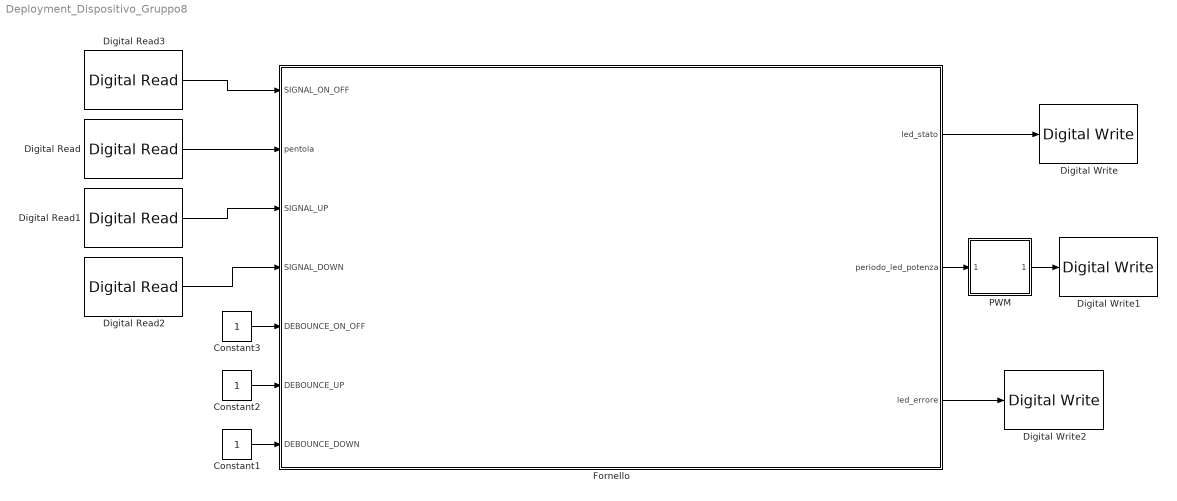
== stateflow chart Deployment_Dispositivo_Gruppo8/Fornello ==
  state DEVICE
    state FORNELLO [parallel]
      state ON
        en: led_stato = true
        state SELECTOR [parallel]
          state SELECTED_0W
            en: selected_power=0;
          state SELECTED_300W
            en: selected_power=300;
          state SELECTED_500W
            en: selected_power=500
          state SELECTED_1000W
            en: selected_power=1000
          state SELECTED_1500W
            en: selected_power=1500
          (default) -> SELECTED_0W
          (junction 32) -> SELECTED_0W
          SELECTED_500W -> (junction 32) [order 1] : disattiva
          SELECTED_1000W -> (junction 32) [order 2] : disattiva
          SELECTED_1500W -> (junction 32) [order 2] : disattiva
          SELECTED_300W -> (junction 32) [order 1] : disattiva
          SELECTED_0W -> SELECTED_300W : LONG_PRESS_UP[pentola == false]
          SELECTED_300W -> SELECTED_0W [order 3] : LONG_PRESS_DOWN[pentola==false]
          SELECTED_500W -> SELECTED_300W [order 2] : LONG_PRESS_DOWN[pentola==false]
          SELECTED_300W -> SELECTED_500W [order 2] : LONG_PRESS_UP[pentola == false]
          SELECTED_1000W -> SELECTED_500W [order 3] : LONG_PRESS_DOWN[pentola==false]
          SELECTED_500W -> SELECTED_1000W [order 3] : LONG_PRESS_UP[pentola == false]
          SELECTED_1500W -> SELECTED_1000W [order 1] : LONG_PRESS_DOWN[pentola == false]
          SELECTED_1000W -> SELECTED_1500W [order 1] : LONG_PRESS_UP[pentola==false]
        state WATCHDOG [parallel]
          state IDLE
          state ERROR
            en: led_errore = true
            on after(10,sec): send(disattiva,SELECTOR); erogaPotenza(0)
            ex: led_errore = false
          (default) -> DEVICE.FORNELLO.ON.WATCHDOG.IDLE
          DEVICE.FORNELLO.ON.WATCHDOG.IDLE -> ERROR : [pentola == true && attivo==true]
          ERROR -> DEVICE.FORNELLO.ON.WATCHDOG.IDLE : [pentola == false || attivo == false]
        state SUPPLIER [parallel]
          state NO_CHANGE_REQUESTED
          state Applying_0_power
            en: erogaPotenza(selected_power)
          state Applying_power
            en: erogaPotenza(selected_power)
          state PENDING_CHANGE
            en: t_debug = 0
          NO_CHANGE_REQUESTED -> PENDING_CHANGE : change_power
          Applying_power -> NO_CHANGE_REQUESTED [order 2]
          Applying_0_power -> NO_CHANGE_REQUESTED
          Applying_power -> Applying_0_power [order 1] : [attivo == false]
          PENDING_CHANGE -> Applying_power : [pentola==false]
        state DELAYED_TRIGGER [parallel]
          state IDLE
          state DELAYING
          (default) -> DEVICE.FORNELLO.ON.DELAYED_TRIGGER.IDLE
          DEVICE.FORNELLO.ON.DELAYED_TRIGGER.IDLE -> DELAYING : change(selected_power)
          DELAYING -> DEVICE.FORNELLO.ON.DELAYED_TRIGGER.IDLE [order 2] : after(5,sec)/{send(change_power, SUPPLIER)}
          DELAYING -> DELAYING [order 1] : change(selected_power)
        (default) -> NO_CHANGE_REQUESTED
      state OFF
        en: led_stato = false; erogaPotenza(0)
      state erogaPotenza(power) [function]
        (default) -> (junction 65) : {power = double(power)}
        (junction 65) -> (junction 68) [order 1] : [power == 0]
        (junction 68) -> (junction 118) : {periodo_led_potenza=0;attivo=false}
        (junction 118) -> (junction 89)
        (junction 65) -> (junction 77) [order 2]
        (junction 77) -> (junction 83) [order 1] : [power == 300]
        (junction 83) -> (junction 120) : {periodo_led_potenza=2;attivo=true}
        (junction 120) -> (junction 89)
        (junction 77) -> (junction 79) [order 2]
        (junction 122) -> (junction 89)
        (junction 119) -> (junction 89)
        (junction 121) -> (junction 89)
        (junction 79) -> (junction 84) [order 1] : [power == 500]
        (junction 84) -> (junction 122) : {periodo_led_potenza=1;attivo=true}
        (junction 79) -> (junction 81) [order 2]
        (junction 81) -> (junction 92) [order 1] : [power == 1000]
        (junction 92) -> (junction 119) : {periodo_led_potenza=0.5;attivo=true}
        (junction 81) -> (junction 95) [order 2]
        (junction 95) -> (junction 99) : [power == 1500]
        (junction 99) -> (junction 121) : {periodo_led_potenza=0.25;attivo=true}
      (default) -> OFF
      OFF -> ON : SHORT_PRESS_ON_OFF
      ON -> OFF : LONG_PRESS_ON_OFF
    state BUTTON_ON_OFF [parallel]
      state HIGH
      state LOW_2
      state LOW
      (default) -> DEVICE.BUTTON_ON_OFF.HIGH
      DEVICE.BUTTON_ON_OFF.LOW_2 -> DEVICE.BUTTON_ON_OFF.HIGH : [SIGNAL_ON_OFF == true]
      DEVICE.BUTTON_ON_OFF.HIGH -> DEVICE.BUTTON_ON_OFF.LOW : [SIGNAL_ON_OFF == false]
      DEVICE.BUTTON_ON_OFF.LOW -> DEVICE.BUTTON_ON_OFF.HIGH [order 2] : before(DEBOUNCE_ON_OFF,sec)[SIGNAL_ON_OFF == true]/{send(SHORT_PRESS_ON_OFF)}
      DEVICE.BUTTON_ON_OFF.LOW -> DEVICE.BUTTON_ON_OFF.HIGH [order 3] : after(DEBOUNCE_ON_OFF,sec)[SIGNAL_ON_OFF == true]/{send(LONG_PRESS_ON_OFF)}
      DEVICE.BUTTON_ON_OFF.LOW -> DEVICE.BUTTON_ON_OFF.LOW_2 [order 1] : after(DEBOUNCE_ON_OFF,sec)[SIGNAL_ON_OFF == false]/{send(LONG_PRESS_ON_OFF)}
    state BUTTON_UP [parallel]
      state HIGH
      state LOW_2
      state LOW
      (default) -> DEVICE.BUTTON_UP.HIGH
      DEVICE.BUTTON_UP.LOW_2 -> DEVICE.BUTTON_UP.HIGH : [SIGNAL_UP == true]
      DEVICE.BUTTON_UP.HIGH -> DEVICE.BUTTON_UP.LOW : [SIGNAL_UP == false]
      DEVICE.BUTTON_UP.LOW -> DEVICE.BUTTON_UP.HIGH [order 2] : before(DEBOUNCE_UP,sec)[SIGNAL_UP == true]/{send(SHORT_PRESS_UP)}
      DEVICE.BUTTON_UP.LOW -> DEVICE.BUTTON_UP.HIGH [order 3] : after(DEBOUNCE_UP,sec)[SIGNAL_UP == true]/{send(LONG_PRESS_UP)}
      DEVICE.BUTTON_UP.LOW -> DEVICE.BUTTON_UP.LOW_2 [order 1] : after(DEBOUNCE_UP,sec)[SIGNAL_UP == false]/{send(LONG_PRESS_UP)}
    state BUTTON_DOWN [parallel]
      state HIGH
      state LOW_2
      state LOW
      (default) -> DEVICE.BUTTON_DOWN.HIGH
      DEVICE.BUTTON_DOWN.LOW_2 -> DEVICE.BUTTON_DOWN.HIGH : [SIGNAL_DOWN == true]
      DEVICE.BUTTON_DOWN.HIGH -> DEVICE.BUTTON_DOWN.LOW : [SIGNAL_DOWN == false]
      DEVICE.BUTTON_DOWN.LOW -> DEVICE.BUTTON_DOWN.HIGH [order 2] : before(DEBOUNCE_DOWN,sec)[SIGNAL_DOWN == true]/{send(SHORT_PRESS_DOWN)}
      DEVICE.BUTTON_DOWN.LOW -> DEVICE.BUTTON_DOWN.HIGH [order 3] : after(DEBOUNCE_DOWN,sec)[SIGNAL_DOWN == true]/{send(LONG_PRESS_DOWN)}
      DEVICE.BUTTON_DOWN.LOW -> DEVICE.BUTTON_DOWN.LOW_2 [order 1] : after(DEBOUNCE_DOWN,sec)[SIGNAL_DOWN == false]/{send(LONG_PRESS_DOWN)}
  (default) -> DEVICE
  data: power function_input double; SIGNAL_ON_OFF input; attivo local boolean =false; led_stato output boolean =false; periodo_led_potenza output double =0; led_errore output boolean =false; pentola input boolean; SIGNAL_UP input; SIGNAL_DOWN input; DEBOUNCE_ON_OFF input double; DEBOUNCE_UP input double; selected_power local double =0; t_debug local double =1; last_down local; last_up local; DEBOUNCE_DOWN input double; last_on_off local; debug local; flag local =0; last_value local
  events: disattiva local FUNCTION_CALL_EVENT; change_power local FUNCTION_CALL_EVENT; LONG_PRESS_DOWN local FUNCTION_CALL_EVENT; LONG_PRESS_UP local FUNCTION_CALL_EVENT; SHORT_PRESS_DOWN local FUNCTION_CALL_EVENT; SHORT_PRESS_UP local FUNCTION_CALL_EVENT; LONG_PRESS_ON_OFF local FUNCTION_CALL_EVENT; SHORT_PRESS_ON_OFF local FUNCTION_CALL_EVENT

== stateflow chart Deployment_Dispositivo_Gruppo8/PWM ==
  state Off
    en: output = false
  state On
    en: output = true
  (default) -> Off
  Off -> On : after(period,sec)[period ~= 0]
  On -> Off : after(period,sec)
  data: output output boolean =false; period input double

/*
 * Deployment_Dispositivo_Gruppo8.c
 *
 * Academic License - for use in teaching, academic research, and meeting
 * course requirements at degree granting institutions only.  Not for
 * government, commercial, or other organizational use.
 *
 * Code generation for model "Deployment_Dispositivo_Gruppo8".
 *
 * Model version              : 1.2
 * Simulink Coder version : 9.8 (R2022b) 13-May-2022
 * C source code generated on : Sat Jun 17 16:18:17 2023
 *
 * Target selection: ert.tlc
 * Note: GRT includes extra infrastructure and instrumentation for prototyping
 * Embedded hardware selection: ARM Compatible->ARM Cortex
 * Code generation objectives: Unspecified
 * Validation result: Not run
 */

#include "Deployment_Dispositivo_Gruppo8.h"
#include "rtwtypes.h"
#include "Deployment_Dispositivo_Gruppo8_types.h"
#include <math.h>
#include <string.h>

/* Named constants for Chart: '<Root>/Fornello' */
#define D_data_change_in_selected_power (18)
#define Deploy_event_SHORT_PRESS_ON_OFF (4)
#define Deploym_event_LONG_PRESS_ON_OFF (1)
#define Deployme_IN_NO_CHANGE_REQUESTED ((uint8_T)3U)
#define Deployme_event_SHORT_PRESS_DOWN (3)
#define Deploymen_event_LONG_PRESS_DOWN (0)
#define Deployment_D_IN_NO_ACTIVE_CHILD ((uint8_T)0U)
#define Deployment_D_event_change_power (6)
#define Deployment_Di_IN_Applying_power ((uint8_T)2U)
#define Deployment_Di_IN_PENDING_CHANGE ((uint8_T)4U)
#define Deployment_Di_IN_SELECTED_1000W ((uint8_T)2U)
#define Deployment_Di_IN_SELECTED_1500W ((uint8_T)3U)
#define Deployment_Dis_IN_SELECTED_300W ((uint8_T)4U)
#define Deployment_Dis_IN_SELECTED_500W ((uint8_T)5U)
#define Deployment_Disp_event_disattiva (7)
#define Deployment_Dispo_IN_SELECTED_0W ((uint8_T)1U)
#define Deployment_Disposit_IN_DELAYING ((uint8_T)1U)
#define Deployment_Dispositi_CALL_EVENT (-1)
#define Deployment_Dispositiv_IN_DEVICE ((uint8_T)1U)
#define Deployment_Dispositivo_G_IN_LOW ((uint8_T)2U)
#define Deployment_Dispositivo_G_IN_OFF ((uint8_T)1U)
#define Deployment_Dispositivo_Gr_IN_ON ((uint8_T)2U)
#define Deployment_Dispositivo_IN_ERROR ((uint8_T)1U)
#define Deployment_Dispositivo_IN_LOW_2 ((uint8_T)3U)
#define Deployment_Dispositivo__IN_HIGH ((uint8_T)1U)
#define Deployment_Dispositivo__IN_IDLE ((uint8_T)2U)
#define Deployment__IN_Applying_0_power ((uint8_T)1U)
#define Deployment__event_LONG_PRESS_UP (2)
#define Deployment_event_SHORT_PRESS_UP (5)

/* Named constants for Chart: '<Root>/PWM' */
#define Deployment_Dispositivo_G_IN_Off ((uint8_T)1U)
#define Deployment_Dispositivo_Gr_IN_On ((uint8_T)2U)

/* Block signals (default storage) */
B_Deployment_Dispositivo_Grup_T Deployment_Dispositivo_Gruppo_B;

/* Block states (default storage) */
DW_Deployment_Dispositivo_Gru_T Deployment_Dispositivo_Grupp_DW;

/* Real-time model */
static RT_MODEL_Deployment_Dispositi_T Deployment_Dispositivo_Grupp_M_;
RT_MODEL_Deployment_Dispositi_T *const Deployment_Dispositivo_Grupp_M =
  &Deployment_Dispositivo_Grupp_M_;

/* Forward declaration for local functions */
static void Deployment_Disposi_erogaPotenza(real_T power);
static void Deployment_Dispositivo_SUPPLIER(void);
static void Deployment_Disp_DELAYED_TRIGGER(void);
static void Deployment_Dispositivo_SELECTOR(void);
static void Deployment_Dispositivo_FORNELLO(void);
static void broadcast_LONG_PRESS_ON_OFF_c2_(void);
static void broadcast_LONG_PRESS_UP_c2_Depl(void);
static void broadcast_LONG_PRESS_DOWN_c2_De(void);
static void c2_Deployment_Dispositivo_Grupp(void);

/* Function for Chart: '<Root>/Fornello' */
static void Deployment_Disposi_erogaPotenza(real_T power)
{
  if (power == 0.0) {
    Deployment_Dispositivo_Gruppo_B.periodo_led_potenza = 0.0;
    Deployment_Dispositivo_Grupp_DW.attivo = false;
  } else if (power == 300.0) {
    Deployment_Dispositivo_Gruppo_B.periodo_led_potenza = 2.0;
    Deployment_Dispositivo_Grupp_DW.attivo = true;
  } else if (power == 500.0) {
    Deployment_Dispositivo_Gruppo_B.periodo_led_potenza = 1.0;
    Deployment_Dispositivo_Grupp_DW.attivo = true;
  } else if (power == 1000.0) {
    Deployment_Dispositivo_Gruppo_B.periodo_led_potenza = 0.5;
    Deployment_Dispositivo_Grupp_DW.attivo = true;
  } else if (power == 1500.0) {
    Deployment_Dispositivo_Gruppo_B.periodo_led_potenza = 0.25;
    Deployment_Dispositivo_Grupp_DW.attivo = true;
  }
}

/* Function for Chart: '<Root>/Fornello' */
static void Deployment_Dispositivo_SUPPLIER(void)
{
  switch (Deployment_Dispositivo_Grupp_DW.is_SUPPLIER) {
   case Deployment__IN_Applying_0_power:
    Deployment_Dispositivo_Grupp_DW.is_SUPPLIER =
      Deployme_IN_NO_CHANGE_REQUESTED;
    break;

   case Deployment_Di_IN_Applying_power:
    if (!Deployment_Dispositivo_Grupp_DW.attivo) {
      Deployment_Dispositivo_Grupp_DW.is_SUPPLIER =
        Deployment__IN_Applying_0_power;
      Deployment_Disposi_erogaPotenza
        (Deployment_Dispositivo_Grupp_DW.selected_power);
    } else {
      Deployment_Dispositivo_Grupp_DW.is_SUPPLIER =
        Deployme_IN_NO_CHANGE_REQUESTED;
    }
    break;

   case Deployme_IN_NO_CHANGE_REQUESTED:
    if (Deployment_Dispositivo_Grupp_DW.sfEvent ==
        Deployment_D_event_change_power) {
      Deployment_Dispositivo_Grupp_DW.is_SUPPLIER =
        Deployment_Di_IN_PENDING_CHANGE;
    }
    break;

   case Deployment_Di_IN_PENDING_CHANGE:
    if (!Deployment_Dispositivo_Gruppo_B.DigitalRead) {
      Deployment_Dispositivo_Grupp_DW.is_SUPPLIER =
        Deployment_Di_IN_Applying_power;
      Deployment_Disposi_erogaPotenza
        (Deployment_Dispositivo_Grupp_DW.selected_power);
    }
    break;

   default:
    /* Unreachable state, for coverage only */
    Deployment_Dispositivo_Grupp_DW.is_SUPPLIER =
      Deployment_D_IN_NO_ACTIVE_CHILD;
    break;
  }
}

/* Function for Chart: '<Root>/Fornello' */
static void Deployment_Disp_DELAYED_TRIGGER(void)
{
  int32_T b_previousEvent;
  switch (Deployment_Dispositivo_Grupp_DW.is_DELAYED_TRIGGER) {
   case Deployment_Disposit_IN_DELAYING:
    if (Deployment_Dispositivo_Grupp_DW.sfEvent ==
        D_data_change_in_selected_power) {
      Deployment_Dispositivo_Grupp_DW.is_DELAYED_TRIGGER =
        Deployment_Disposit_IN_DELAYING;
      Deployment_Dispositivo_Grupp_DW.temporalCounter_i2 = 0U;
    } else if (Deployment_Dispositivo_Grupp_DW.temporalCounter_i2 >= 500U) {
      b_previousEvent = Deployment_Dispositivo_Grupp_DW.sfEvent;
      Deployment_Dispositivo_Grupp_DW.sfEvent = Deployment_D_event_change_power;
      if (Deployment_Dispositivo_Grupp_DW.is_active_SUPPLIER != 0U) {
        Deployment_Dispositivo_SUPPLIER();
      }

      Deployment_Dispositivo_Grupp_DW.sfEvent = b_previousEvent;
      Deployment_Dispositivo_Grupp_DW.is_DELAYED_TRIGGER =
        Deployment_Dispositivo__IN_IDLE;
    }
    break;

   case Deployment_Dispositivo__IN_IDLE:
    if (Deployment_Dispositivo_Grupp_DW.sfEvent ==
        D_data_change_in_selected_power) {
      Deployment_Dispositivo_Grupp_DW.is_DELAYED_TRIGGER =
        Deployment_Disposit_IN_DELAYING;
      Deployment_Dispositivo_Grupp_DW.temporalCounter_i2 = 0U;
    }
    break;

   default:
    /* Unreachable state, for coverage only */
    Deployment_Dispositivo_Grupp_DW.is_DELAYED_TRIGGER =
      Deployment_D_IN_NO_ACTIVE_CHILD;
    break;
  }
}

/* Function for Chart: '<Root>/Fornello' */
static void Deployment_Dispositivo_SELECTOR(void)
{
  int32_T c_previousEvent;
  boolean_T guard1 = false;
  boolean_T tmp;
  guard1 = false;
  switch (Deployment_Dispositivo_Grupp_DW.is_SELECTOR) {
   case Deployment_Dispo_IN_SELECTED_0W:
    if ((Deployment_Dispositivo_Grupp_DW.sfEvent ==
         Deployment__event_LONG_PRESS_UP) &&
        (!Deployment_Dispositivo_Gruppo_B.DigitalRead)) {
      Deployment_Dispositivo_Grupp_DW.is_SELECTOR =
        Deployment_Dis_IN_SELECTED_300W;
      Deployment_Dispositivo_Grupp_DW.selected_power = 300.0;
      Deployment_Dispositivo_Grupp_DW.sfEvent = D_data_change_in_selected_power;
      if (Deployment_Dispositivo_Grupp_DW.is_active_DELAYED_TRIGGER != 0U) {
        Deployment_Disp_DELAYED_TRIGGER();
      }

      Deployment_Dispositivo_Grupp_DW.sfEvent = 2;
    }
    break;

   case Deployment_Di_IN_SELECTED_1000W:
    tmp = !Deployment_Dispositivo_Gruppo_B.DigitalRead;
    if ((Deployment_Dispositivo_Grupp_DW.sfEvent ==
         Deployment__event_LONG_PRESS_UP) && tmp) {
      Deployment_Dispositivo_Grupp_DW.is_SELECTOR =
        Deployment_Di_IN_SELECTED_1500W;
      Deployment_Dispositivo_Grupp_DW.selected_power = 1500.0;
      Deployment_Dispositivo_Grupp_DW.sfEvent = D_data_change_in_selected_power;
      if (Deployment_Dispositivo_Grupp_DW.is_active_DELAYED_TRIGGER != 0U) {
        Deployment_Disp_DELAYED_TRIGGER();
      }

      Deployment_Dispositivo_Grupp_DW.sfEvent = 2;
    } else if (Deployment_Dispositivo_Grupp_DW.sfEvent ==
               Deployment_Disp_event_disattiva) {
      Deployment_Dispositivo_Grupp_DW.is_SELECTOR =
        Deployment_Dispo_IN_SELECTED_0W;
      Deployment_Dispositivo_Grupp_DW.selected_power = 0.0;
      Deployment_Dispositivo_Grupp_DW.sfEvent = D_data_change_in_selected_power;
      if (Deployment_Dispositivo_Grupp_DW.is_active_DELAYED_TRIGGER != 0U) {
        Deployment_Disp_DELAYED_TRIGGER();
      }

      Deployment_Dispositivo_Grupp_DW.sfEvent = 7;
    } else if ((Deployment_Dispositivo_Grupp_DW.sfEvent ==
                Deploymen_event_LONG_PRESS_DOWN) && tmp) {
      Deployment_Dispositivo_Grupp_DW.is_SELECTOR =
        Deployment_Dis_IN_SELECTED_500W;
      Deployment_Dispositivo_Grupp_DW.selected_power = 500.0;
      Deployment_Dispositivo_Grupp_DW.sfEvent = D_data_change_in_selected_power;
      if (Deployment_Dispositivo_Grupp_DW.is_active_DELAYED_TRIGGER != 0U) {
        Deployment_Disp_DELAYED_TRIGGER();
      }

      Deployment_Dispositivo_Grupp_DW.sfEvent = 0;
    }
    break;

   case Deployment_Di_IN_SELECTED_1500W:
    if ((Deployment_Dispositivo_Grupp_DW.sfEvent ==
         Deploymen_event_LONG_PRESS_DOWN) &&
        (!Deployment_Dispositivo_Gruppo_B.DigitalRead)) {
      Deployment_Dispositivo_Grupp_DW.is_SELECTOR =
        Deployment_Di_IN_SELECTED_1000W;
      Deployment_Dispositivo_Grupp_DW.selected_power = 1000.0;
      Deployment_Dispositivo_Grupp_DW.sfEvent = D_data_change_in_selected_power;
      if (Deployment_Dispositivo_Grupp_DW.is_active_DELAYED_TRIGGER != 0U) {
        Deployment_Disp_DELAYED_TRIGGER();
      }

      Deployment_Dispositivo_Grupp_DW.sfEvent = 0;
    } else if (Deployment_Dispositivo_Grupp_DW.sfEvent ==
               Deployment_Disp_event_disattiva) {
      Deployment_Dispositivo_Grupp_DW.is_SELECTOR =
        Deployment_Dispo_IN_SELECTED_0W;
      Deployment_Dispositivo_Grupp_DW.selected_power = 0.0;
      Deployment_Dispositivo_Grupp_DW.sfEvent = D_data_change_in_selected_power;
      if (Deployment_Dispositivo_Grupp_DW.is_active_DELAYED_TRIGGER != 0U) {
        Deployment_Disp_DELAYED_TRIGGER();
      }

      Deployment_Dispositivo_Grupp_DW.sfEvent = 7;
    }
    break;

   case Deployment_Dis_IN_SELECTED_300W:
    if (Deployment_Dispositivo_Grupp_DW.sfEvent ==
        Deployment_Disp_event_disattiva) {
      guard1 = true;
    } else {
      tmp = !Deployment_Dispositivo_Gruppo_B.DigitalRead;
      if ((Deployment_Dispositivo_Grupp_DW.sfEvent ==
           Deployment__event_LONG_PRESS_UP) && tmp) {
        Deployment_Dispositivo_Grupp_DW.is_SELECTOR =
          Deployment_Dis_IN_SELECTED_500W;
        Deployment_Dispositivo_Grupp_DW.selected_power = 500.0;
        Deployment_Dispositivo_Grupp_DW.sfEvent =
          D_data_change_in_selected_power;
        if (Deployment_Dispositivo_Grupp_DW.is_active_DELAYED_TRIGGER != 0U) {
          Deployment_Disp_DELAYED_TRIGGER();
        }

        Deployment_Dispositivo_Grupp_DW.sfEvent = 2;
      } else if ((Deployment_Dispositivo_Grupp_DW.sfEvent ==
                  Deploymen_event_LONG_PRESS_DOWN) && tmp) {
        guard1 = true;
      }
    }
    break;

   case Deployment_Dis_IN_SELECTED_500W:
    if (Deployment_Dispositivo_Grupp_DW.sfEvent ==
        Deployment_Disp_event_disattiva) {
      Deployment_Dispositivo_Grupp_DW.is_SELECTOR =
        Deployment_Dispo_IN_SELECTED_0W;
      Deployment_Dispositivo_Grupp_DW.selected_power = 0.0;
      Deployment_Dispositivo_Grupp_DW.sfEvent = D_data_change_in_selected_power;
      if (Deployment_Dispositivo_Grupp_DW.is_active_DELAYED_TRIGGER != 0U) {
        Deployment_Disp_DELAYED_TRIGGER();
      }

      Deployment_Dispositivo_Grupp_DW.sfEvent = 7;
    } else {
      tmp = !Deployment_Dispositivo_Gruppo_B.DigitalRead;
      if ((Deployment_Dispositivo_Grupp_DW.sfEvent ==
           Deploymen_event_LONG_PRESS_DOWN) && tmp) {
        Deployment_Dispositivo_Grupp_DW.is_SELECTOR =
          Deployment_Dis_IN_SELECTED_300W;
        Deployment_Dispositivo_Grupp_DW.selected_power = 300.0;
        Deployment_Dispositivo_Grupp_DW.sfEvent =
          D_data_change_in_selected_power;
        if (Deployment_Dispositivo_Grupp_DW.is_active_DELAYED_TRIGGER != 0U) {
          Deployment_Disp_DELAYED_TRIGGER();
        }

        Deployment_Dispositivo_Grupp_DW.sfEvent = 0;
      } else if ((Deployment_Dispositivo_Grupp_DW.sfEvent ==
                  Deployment__event_LONG_PRESS_UP) && tmp) {
        Deployment_Dispositivo_Grupp_DW.is_SELECTOR =
          Deployment_Di_IN_SELECTED_1000W;
        Deployment_Dispositivo_Grupp_DW.selected_power = 1000.0;
        Deployment_Dispositivo_Grupp_DW.sfEvent =
          D_data_change_in_selected_power;
        if (Deployment_Dispositivo_Grupp_DW.is_active_DELAYED_TRIGGER != 0U) {
          Deployment_Disp_DELAYED_TRIGGER();
        }

        Deployment_Dispositivo_Grupp_DW.sfEvent = 2;
      }
    }
    break;

   default:
    /* Unreachable state, for coverage only */
    Deployment_Dispositivo_Grupp_DW.is_SELECTOR =
      Deployment_D_IN_NO_ACTIVE_CHILD;
    break;
  }

  if (guard1) {
    Deployment_Dispositivo_Grupp_DW.is_SELECTOR =
      Deployment_Dispo_IN_SELECTED_0W;
    Deployment_Dispositivo_Grupp_DW.selected_power = 0.0;
    c_previousEvent = Deployment_Dispositivo_Grupp_DW.sfEvent;
    Deployment_Dispositivo_Grupp_DW.sfEvent = D_data_change_in_selected_power;
    if (Deployment_Dispositivo_Grupp_DW.is_active_DELAYED_TRIGGER != 0U) {
      Deployment_Disp_DELAYED_TRIGGER();
    }

    Deployment_Dispositivo_Grupp_DW.sfEvent = c_previousEvent;
  }
}

/* Function for Chart: '<Root>/Fornello' */
static void Deployment_Dispositivo_FORNELLO(void)
{
  int32_T b_previousEvent;
  switch (Deployment_Dispositivo_Grupp_DW.is_FORNELLO) {
   case Deployment_Dispositivo_G_IN_OFF:
    Deployment_Dispositivo_Gruppo_B.led_stato = false;
    if (Deployment_Dispositivo_Grupp_DW.sfEvent ==
        Deploy_event_SHORT_PRESS_ON_OFF) {
      Deployment_Dispositivo_Grupp_DW.is_FORNELLO =
        Deployment_Dispositivo_Gr_IN_ON;
      Deployment_Dispositivo_Gruppo_B.led_stato = true;
      Deployment_Dispositivo_Grupp_DW.is_active_SELECTOR = 1U;
      Deployment_Dispositivo_Grupp_DW.is_SELECTOR =
        Deployment_Dispo_IN_SELECTED_0W;
      Deployment_Dispositivo_Grupp_DW.selected_power = 0.0;
      Deployment_Dispositivo_Grupp_DW.sfEvent = D_data_change_in_selected_power;
      if (Deployment_Dispositivo_Grupp_DW.is_active_DELAYED_TRIGGER != 0U) {
        Deployment_Disp_DELAYED_TRIGGER();
      }

      Deployment_Dispositivo_Grupp_DW.sfEvent = 4;
      Deployment_Dispositivo_Grupp_DW.is_active_WATCHDOG = 1U;
      Deployment_Dispositivo_Grupp_DW.is_WATCHDOG =
        Deployment_Dispositivo__IN_IDLE;
      Deployment_Dispositivo_Grupp_DW.is_active_SUPPLIER = 1U;
      Deployment_Dispositivo_Grupp_DW.is_SUPPLIER =
        Deployme_IN_NO_CHANGE_REQUESTED;
      Deployment_Dispositivo_Grupp_DW.is_active_DELAYED_TRIGGER = 1U;
      Deployment_Dispositivo_Grupp_DW.is_DELAYED_TRIGGER =
        Deployment_Dispositivo__IN_IDLE;
    }
    break;

   case Deployment_Dispositivo_Gr_IN_ON:
    Deployment_Dispositivo_Gruppo_B.led_stato = true;
    if (Deployment_Dispositivo_Grupp_DW.sfEvent ==
        Deploym_event_LONG_PRESS_ON_OFF) {
      Deployment_Dispositivo_Grupp_DW.is_DELAYED_TRIGGER =
        Deployment_D_IN_NO_ACTIVE_CHILD;
      Deployment_Dispositivo_Grupp_DW.is_active_DELAYED_TRIGGER = 0U;
      Deployment_Dispositivo_Grupp_DW.is_SUPPLIER =
        Deployment_D_IN_NO_ACTIVE_CHILD;
      Deployment_Dispositivo_Grupp_DW.is_active_SUPPLIER = 0U;
      if (Deployment_Dispositivo_Grupp_DW.is_WATCHDOG ==
          Deployment_Dispositivo_IN_ERROR) {
        Deployment_Dispositivo_Gruppo_B.led_errore = false;
        Deployment_Dispositivo_Grupp_DW.is_WATCHDOG =
          Deployment_D_IN_NO_ACTIVE_CHILD;
      } else {
        Deployment_Dispositivo_Grupp_DW.is_WATCHDOG =
          Deployment_D_IN_NO_ACTIVE_CHILD;
      }

      Deployment_Dispositivo_Grupp_DW.is_active_WATCHDOG = 0U;
      Deployment_Dispositivo_Grupp_DW.is_SELECTOR =
        Deployment_D_IN_NO_ACTIVE_CHILD;
      Deployment_Dispositivo_Grupp_DW.is_active_SELECTOR = 0U;
      Deployment_Dispositivo_Grupp_DW.is_FORNELLO =
        Deployment_Dispositivo_G_IN_OFF;
      Deployment_Dispositivo_Gruppo_B.led_stato = false;
      Deployment_Disposi_erogaPotenza(0.0);
    } else {
      if (Deployment_Dispositivo_Grupp_DW.is_active_SELECTOR != 0U) {
        Deployment_Dispositivo_SELECTOR();
      }

      if (Deployment_Dispositivo_Grupp_DW.is_active_WATCHDOG != 0U) {
        switch (Deployment_Dispositivo_Grupp_DW.is_WATCHDOG) {
         case Deployment_Dispositivo_IN_ERROR:
          if ((!Deployment_Dispositivo_Gruppo_B.DigitalRead) ||
              (!Deployment_Dispositivo_Grupp_DW.attivo)) {
            Deployment_Dispositivo_Gruppo_B.led_errore = false;
            Deployment_Dispositivo_Grupp_DW.is_WATCHDOG =
              Deployment_Dispositivo__IN_IDLE;
          } else if (Deployment_Dispositivo_Grupp_DW.temporalCounter_i1_o >=
                     1000U) {
            b_previousEvent = Deployment_Dispositivo_Grupp_DW.sfEvent;
            Deployment_Dispositivo_Grupp_DW.sfEvent =
              Deployment_Disp_event_disattiva;
            if (Deployment_Dispositivo_Grupp_DW.is_active_SELECTOR != 0U) {
              Deployment_Dispositivo_SELECTOR();
            }

            Deployment_Dispositivo_Grupp_DW.sfEvent = b_previousEvent;
            Deployment_Disposi_erogaPotenza(0.0);
          }
          break;

         case Deployment_Dispositivo__IN_IDLE:
          if (Deployment_Dispositivo_Gruppo_B.DigitalRead &&
              Deployment_Dispositivo_Grupp_DW.attivo) {
            Deployment_Dispositivo_Grupp_DW.is_WATCHDOG =
              Deployment_Dispositivo_IN_ERROR;
            Deployment_Dispositivo_Grupp_DW.temporalCounter_i1_o = 0U;
            Deployment_Dispositivo_Gruppo_B.led_errore = true;
          }
          break;

         default:
          /* Unreachable state, for coverage only */
          Deployment_Dispositivo_Grupp_DW.is_WATCHDOG =
            Deployment_D_IN_NO_ACTIVE_CHILD;
          break;
        }
      }

      if (Deployment_Dispositivo_Grupp_DW.is_active_SUPPLIER != 0U) {
        Deployment_Dispositivo_SUPPLIER();
      }

      if (Deployment_Dispositivo_Grupp_DW.is_active_DELAYED_TRIGGER != 0U) {
        Deployment_Disp_DELAYED_TRIGGER();
      }
    }
    break;

   default:
    /* Unreachable state, for coverage only */
    Deployment_Dispositivo_Grupp_DW.is_FORNELLO =
      Deployment_D_IN_NO_ACTIVE_CHILD;
    break;
  }
}

/* Function for Chart: '<Root>/Fornello' */
static void broadcast_LONG_PRESS_ON_OFF_c2_(void)
{
  int32_T b_previousEvent;
  b_previousEvent = Deployment_Dispositivo_Grupp_DW.sfEvent;
  Deployment_Dispositivo_Grupp_DW.sfEvent = Deploym_event_LONG_PRESS_ON_OFF;

  /* Chart: '<Root>/Fornello' */
  c2_Deployment_Dispositivo_Grupp();
  Deployment_Dispositivo_Grupp_DW.sfEvent = b_previousEvent;
}

/* Function for Chart: '<Root>/Fornello' */
static void broadcast_LONG_PRESS_UP_c2_Depl(void)
{
  int32_T b_previousEvent;
  b_previousEvent = Deployment_Dispositivo_Grupp_DW.sfEvent;
  Deployment_Dispositivo_Grupp_DW.sfEvent = Deployment__event_LONG_PRESS_UP;

  /* Chart: '<Root>/Fornello' */
  c2_Deployment_Dispositivo_Grupp();
  Deployment_Dispositivo_Grupp_DW.sfEvent = b_previousEvent;
}

/* Function for Chart: '<Root>/Fornello' */
static void broadcast_LONG_PRESS_DOWN_c2_De(void)
{
  int32_T b_previousEvent;
  b_previousEvent = Deployment_Dispositivo_Grupp_DW.sfEvent;
  Deployment_Dispositivo_Grupp_DW.sfEvent = Deploymen_event_LONG_PRESS_DOWN;

  /* Chart: '<Root>/Fornello' */
  c2_Deployment_Dispositivo_Grupp();
  Deployment_Dispositivo_Grupp_DW.sfEvent = b_previousEvent;
}

/* Function for Chart: '<Root>/Fornello' */
static void c2_Deployment_Dispositivo_Grupp(void)
{
  int32_T b_previousEvent;
  uint32_T tmp;
  if (Deployment_Dispositivo_Grupp_DW.is_c2_Deployment_Dispositivo_Gr ==
      Deployment_Dispositiv_IN_DEVICE) {
    if (Deployment_Dispositivo_Grupp_DW.is_active_FORNELLO != 0U) {
      Deployment_Dispositivo_FORNELLO();
    }

    if (Deployment_Dispositivo_Grupp_DW.is_active_BUTTON_ON_OFF != 0U) {
      switch (Deployment_Dispositivo_Grupp_DW.is_BUTTON_ON_OFF) {
       case Deployment_Dispositivo__IN_HIGH:
        if (!Deployment_Dispositivo_Gruppo_B.DigitalRead3) {
          Deployment_Dispositivo_Grupp_DW.is_BUTTON_ON_OFF =
            Deployment_Dispositivo_G_IN_LOW;
          Deployment_Dispositivo_Grupp_DW.temporalCounter_i3 = 0U;
        }
        break;

       case Deployment_Dispositivo_G_IN_LOW:
        /* Constant: '<Root>/Constant3' */
        tmp = (uint32_T)ceil(Deployment_Dispositivo_Gruppo_P.Constant3_Value *
                             100.0);
        if ((Deployment_Dispositivo_Grupp_DW.temporalCounter_i3 >= tmp) &&
            (!Deployment_Dispositivo_Gruppo_B.DigitalRead3)) {
          Deployment_Dispositivo_Grupp_DW.is_BUTTON_ON_OFF =
            Deployment_D_IN_NO_ACTIVE_CHILD;
          broadcast_LONG_PRESS_ON_OFF_c2_();
          if (Deployment_Dispositivo_Grupp_DW.is_BUTTON_ON_OFF ==
              Deployment_D_IN_NO_ACTIVE_CHILD) {
            Deployment_Dispositivo_Grupp_DW.is_BUTTON_ON_OFF =
              Deployment_Dispositivo_IN_LOW_2;
          }
        } else if ((Deployment_Dispositivo_Grupp_DW.temporalCounter_i3 < tmp) &&
                   Deployment_Dispositivo_Gruppo_B.DigitalRead3) {
          Deployment_Dispositivo_Grupp_DW.is_BUTTON_ON_OFF =
            Deployment_D_IN_NO_ACTIVE_CHILD;
          b_previousEvent = Deployment_Dispositivo_Grupp_DW.sfEvent;
          Deployment_Dispositivo_Grupp_DW.sfEvent =
            Deploy_event_SHORT_PRESS_ON_OFF;

          /* Chart: '<Root>/Fornello' */
          c2_Deployment_Dispositivo_Grupp();
          Deployment_Dispositivo_Grupp_DW.sfEvent = b_previousEvent;
          if (Deployment_Dispositivo_Grupp_DW.is_BUTTON_ON_OFF ==
              Deployment_D_IN_NO_ACTIVE_CHILD) {
            Deployment_Dispositivo_Grupp_DW.is_BUTTON_ON_OFF =
              Deployment_Dispositivo__IN_HIGH;
          }
        } else if ((Deployment_Dispositivo_Grupp_DW.temporalCounter_i3 >= tmp) &&
                   Deployment_Dispositivo_Gruppo_B.DigitalRead3) {
          Deployment_Dispositivo_Grupp_DW.is_BUTTON_ON_OFF =
            Deployment_D_IN_NO_ACTIVE_CHILD;
          broadcast_LONG_PRESS_ON_OFF_c2_();
          if (Deployment_Dispositivo_Grupp_DW.is_BUTTON_ON_OFF ==
              Deployment_D_IN_NO_ACTIVE_CHILD) {
            Deployment_Dispositivo_Grupp_DW.is_BUTTON_ON_OFF =
              Deployment_Dispositivo__IN_HIGH;
          }
        }
        break;

       case Deployment_Dispositivo_IN_LOW_2:
        if (Deployment_Dispositivo_Gruppo_B.DigitalRead3) {
          Deployment_Dispositivo_Grupp_DW.is_BUTTON_ON_OFF =
            Deployment_Dispositivo__IN_HIGH;
        }
        break;

       default:
        /* Unreachable state, for coverage only */
        Deployment_Dispositivo_Grupp_DW.is_BUTTON_ON_OFF =
          Deployment_D_IN_NO_ACTIVE_CHILD;
        break;
      }
    }

    if (Deployment_Dispositivo_Grupp_DW.is_active_BUTTON_UP != 0U) {
      switch (Deployment_Dispositivo_Grupp_DW.is_BUTTON_UP) {
       case Deployment_Dispositivo__IN_HIGH:
        if (!Deployment_Dispositivo_Gruppo_B.DigitalRead1) {
          Deployment_Dispositivo_Grupp_DW.is_BUTTON_UP =
            Deployment_Dispositivo_G_IN_LOW;
          Deployment_Dispositivo_Grupp_DW.temporalCounter_i4 = 0U;
        }
        break;

       case Deployment_Dispositivo_G_IN_LOW:
        /* Constant: '<Root>/Constant2' */
        tmp = (uint32_T)ceil(Deployment_Dispositivo_Gruppo_P.Constant2_Value *
                             100.0);
        if ((Deployment_Dispositivo_Grupp_DW.temporalCounter_i4 >= tmp) &&
            (!Deployment_Dispositivo_Gruppo_B.DigitalRead1)) {
          Deployment_Dispositivo_Grupp_DW.is_BUTTON_UP =
            Deployment_D_IN_NO_ACTIVE_CHILD;
          broadcast_LONG_PRESS_UP_c2_Depl();
          if (Deployment_Dispositivo_Grupp_DW.is_BUTTON_UP ==
              Deployment_D_IN_NO_ACTIVE_CHILD) {
            Deployment_Dispositivo_Grupp_DW.is_BUTTON_UP =
              Deployment_Dispositivo_IN_LOW_2;
          }
        } else if ((Deployment_Dispositivo_Grupp_DW.temporalCounter_i4 < tmp) &&
                   Deployment_Dispositivo_Gruppo_B.DigitalRead1) {
          Deployment_Dispositivo_Grupp_DW.is_BUTTON_UP =
            Deployment_D_IN_NO_ACTIVE_CHILD;
          b_previousEvent = Deployment_Dispositivo_Grupp_DW.sfEvent;
          Deployment_Dispositivo_Grupp_DW.sfEvent =
            Deployment_event_SHORT_PRESS_UP;

          /* Chart: '<Root>/Fornello' */
          c2_Deployment_Dispositivo_Grupp();
          Deployment_Dispositivo_Grupp_DW.sfEvent = b_previousEvent;
          if (Deployment_Dispositivo_Grupp_DW.is_BUTTON_UP ==
              Deployment_D_IN_NO_ACTIVE_CHILD) {
            Deployment_Dispositivo_Grupp_DW.is_BUTTON_UP =
              Deployment_Dispositivo__IN_HIGH;
          }
        } else if ((Deployment_Dispositivo_Grupp_DW.temporalCounter_i4 >= tmp) &&
                   Deployment_Dispositivo_Gruppo_B.DigitalRead1) {
          Deployment_Dispositivo_Grupp_DW.is_BUTTON_UP =
            Deployment_D_IN_NO_ACTIVE_CHILD;
          broadcast_LONG_PRESS_UP_c2_Depl();
          if (Deployment_Dispositivo_Grupp_DW.is_BUTTON_UP ==
              Deployment_D_IN_NO_ACTIVE_CHILD) {
            Deployment_Dispositivo_Grupp_DW.is_BUTTON_UP =
              Deployment_Dispositivo__IN_HIGH;
          }
        }
        break;

       case Deployment_Dispositivo_IN_LOW_2:
        if (Deployment_Dispositivo_Gruppo_B.DigitalRead1) {
          Deployment_Dispositivo_Grupp_DW.is_BUTTON_UP =
            Deployment_Dispositivo__IN_HIGH;
        }
        break;

       default:
        /* Unreachable state, for coverage only */
        Deployment_Dispositivo_Grupp_DW.is_BUTTON_UP =
          Deployment_D_IN_NO_ACTIVE_CHILD;
        break;
      }
    }

    if (Deployment_Dispositivo_Grupp_DW.is_active_BUTTON_DOWN != 0U) {
      switch (Deployment_Dispositivo_Grupp_DW.is_BUTTON_DOWN) {
       case Deployment_Dispositivo__IN_HIGH:
        if (!Deployment_Dispositivo_Gruppo_B.DigitalRead2) {
          Deployment_Dispositivo_Grupp_DW.is_BUTTON_DOWN =
            Deployment_Dispositivo_G_IN_LOW;
          Deployment_Dispositivo_Grupp_DW.temporalCounter_i5 = 0U;
        }
        break;

       case Deployment_Dispositivo_G_IN_LOW:
        /* Constant: '<Root>/Constant1' */
        tmp = (uint32_T)ceil(Deployment_Dispositivo_Gruppo_P.Constant1_Value *
                             100.0);
        if ((Deployment_Dispositivo_Grupp_DW.temporalCounter_i5 >= tmp) &&
            (!Deployment_Dispositivo_Gruppo_B.DigitalRead2)) {
          Deployment_Dispositivo_Grupp_DW.is_BUTTON_DOWN =
            Deployment_D_IN_NO_ACTIVE_CHILD;
          broadcast_LONG_PRESS_DOWN_c2_De();
          if (Deployment_Dispositivo_Grupp_DW.is_BUTTON_DOWN ==
              Deployment_D_IN_NO_ACTIVE_CHILD) {
            Deployment_Dispositivo_Grupp_DW.is_BUTTON_DOWN =
              Deployment_Dispositivo_IN_LOW_2;
          }
        } else if ((Deployment_Dispositivo_Grupp_DW.temporalCounter_i5 < tmp) &&
                   Deployment_Dispositivo_Gruppo_B.DigitalRead2) {
          Deployment_Dispositivo_Grupp_DW.is_BUTTON_DOWN =
            Deployment_D_IN_NO_ACTIVE_CHILD;
          b_previousEvent = Deployment_Dispositivo_Grupp_DW.sfEvent;
          Deployment_Dispositivo_Grupp_DW.sfEvent =
            Deployme_event_SHORT_PRESS_DOWN;

          /* Chart: '<Root>/Fornello' */
          c2_Deployment_Dispositivo_Grupp();
          Deployment_Dispositivo_Grupp_DW.sfEvent = b_previousEvent;
          if (Deployment_Dispositivo_Grupp_DW.is_BUTTON_DOWN ==
              Deployment_D_IN_NO_ACTIVE_CHILD) {
            Deployment_Dispositivo_Grupp_DW.is_BUTTON_DOWN =
              Deployment_Dispositivo__IN_HIGH;
          }
        } else if ((Deployment_Dispositivo_Grupp_DW.temporalCounter_i5 >= tmp) &&
                   Deployment_Dispositivo_Gruppo_B.DigitalRead2) {
          Deployment_Dispositivo_Grupp_DW.is_BUTTON_DOWN =
            Deployment_D_IN_NO_ACTIVE_CHILD;
          broadcast_LONG_PRESS_DOWN_c2_De();
          if (Deployment_Dispositivo_Grupp_DW.is_BUTTON_DOWN ==
              Deployment_D_IN_NO_ACTIVE_CHILD) {
            Deployment_Dispositivo_Grupp_DW.is_BUTTON_DOWN =
              Deployment_Dispositivo__IN_HIGH;
          }
        }
        break;

       case Deployment_Dispositivo_IN_LOW_2:
        if (Deployment_Dispositivo_Gruppo_B.DigitalRead2) {
          Deployment_Dispositivo_Grupp_DW.is_BUTTON_DOWN =
            Deployment_Dispositivo__IN_HIGH;
        }
        break;

       default:
        /* Unreachable state, for coverage only */
        Deployment_Dispositivo_Grupp_DW.is_BUTTON_DOWN =
          Deployment_D_IN_NO_ACTIVE_CHILD;
        break;
      }
    }
  }
}

/* Model step function */
void Deployment_Dispositivo_Gruppo8_step(void)
{
  boolean_T rtb_output;

  /* MATLABSystem: '<Root>/Digital Read3' */
  if (Deployment_Dispositivo_Grupp_DW.obj.SampleTime !=
      Deployment_Dispositivo_Gruppo_P.DigitalRead3_SampleTime) {
    Deployment_Dispositivo_Grupp_DW.obj.SampleTime =
      Deployment_Dispositivo_Gruppo_P.DigitalRead3_SampleTime;
  }

  /* MATLABSystem: '<Root>/Digital Read3' */
  Deployment_Dispositivo_Gruppo_B.DigitalRead3 = MW_digitalIO_read
    (Deployment_Dispositivo_Grupp_DW.obj.MW_DIGITALIO_HANDLE);

  /* MATLABSystem: '<Root>/Digital Read' */
  if (Deployment_Dispositivo_Grupp_DW.obj_m.SampleTime !=
      Deployment_Dispositivo_Gruppo_P.DigitalRead_SampleTime) {
    Deployment_Dispositivo_Grupp_DW.obj_m.SampleTime =
      Deployment_Dispositivo_Gruppo_P.DigitalRead_SampleTime;
  }

  /* MATLABSystem: '<Root>/Digital Read' */
  Deployment_Dispositivo_Gruppo_B.DigitalRead = MW_digitalIO_read
    (Deployment_Dispositivo_Grupp_DW.obj_m.MW_DIGITALIO_HANDLE);

  /* MATLABSystem: '<Root>/Digital Read1' */
  if (Deployment_Dispositivo_Grupp_DW.obj_b.SampleTime !=
      Deployment_Dispositivo_Gruppo_P.DigitalRead1_SampleTime) {
    Deployment_Dispositivo_Grupp_DW.obj_b.SampleTime =
      Deployment_Dispositivo_Gruppo_P.DigitalRead1_SampleTime;
  }

  /* MATLABSystem: '<Root>/Digital Read1' */
  Deployment_Dispositivo_Gruppo_B.DigitalRead1 = MW_digitalIO_read
    (Deployment_Dispositivo_Grupp_DW.obj_b.MW_DIGITALIO_HANDLE);

  /* MATLABSystem: '<Root>/Digital Read2' */
  if (Deployment_Dispositivo_Grupp_DW.obj_o.SampleTime !=
      Deployment_Dispositivo_Gruppo_P.DigitalRead2_SampleTime) {
    Deployment_Dispositivo_Grupp_DW.obj_o.SampleTime =
      Deployment_Dispositivo_Gruppo_P.DigitalRead2_SampleTime;
  }

  /* MATLABSystem: '<Root>/Digital Read2' */
  Deployment_Dispositivo_Gruppo_B.DigitalRead2 = MW_digitalIO_read
    (Deployment_Dispositivo_Grupp_DW.obj_o.MW_DIGITALIO_HANDLE);

  /* Chart: '<Root>/Fornello' */
  if (Deployment_Dispositivo_Grupp_DW.isNotInit) {
    if (Deployment_Dispositivo_Grupp_DW.temporalCounter_i1_o < 1023U) {
      Deployment_Dispositivo_Grupp_DW.temporalCounter_i1_o++;
    }

    if (Deployment_Dispositivo_Grupp_DW.temporalCounter_i2 < 511U) {
      Deployment_Dispositivo_Grupp_DW.temporalCounter_i2++;
    }

    if (Deployment_Dispositivo_Grupp_DW.temporalCounter_i3 < MAX_uint32_T) {
      Deployment_Dispositivo_Grupp_DW.temporalCounter_i3++;
    }

    if (Deployment_Dispositivo_Grupp_DW.temporalCounter_i4 < MAX_uint32_T) {
      Deployment_Dispositivo_Grupp_DW.temporalCounter_i4++;
    }

    if (Deployment_Dispositivo_Grupp_DW.temporalCounter_i5 < MAX_uint32_T) {
      Deployment_Dispositivo_Grupp_DW.temporalCounter_i5++;
    }
  }

  Deployment_Dispositivo_Grupp_DW.isNotInit = true;
  Deployment_Dispositivo_Grupp_DW.sfEvent = Deployment_Dispositi_CALL_EVENT;
  c2_Deployment_Dispositivo_Grupp();

  /* End of Chart: '<Root>/Fornello' */

  /* MATLABSystem: '<Root>/Digital Write' */
  MW_digitalIO_write(Deployment_Dispositivo_Grupp_DW.obj_m4.MW_DIGITALIO_HANDLE,
                     Deployment_Dispositivo_Gruppo_B.led_stato);

  /* Chart: '<Root>/PWM' */
  if (Deployment_Dispositivo_Grupp_DW.temporalCounter_i1 < MAX_uint32_T) {
    Deployment_Dispositivo_Grupp_DW.temporalCounter_i1++;
  }

  if (Deployment_Dispositivo_Grupp_DW.is_active_c5_Deployment_Disposi == 0U) {
    Deployment_Dispositivo_Grupp_DW.is_active_c5_Deployment_Disposi = 1U;
    Deployment_Dispositivo_Grupp_DW.is_c5_Deployment_Dispositivo_Gr =
      Deployment_Dispositivo_G_IN_Off;
    Deployment_Dispositivo_Grupp_DW.temporalCounter_i1 = 0U;
    rtb_output = false;
  } else if (Deployment_Dispositivo_Grupp_DW.is_c5_Deployment_Dispositivo_Gr ==
             Deployment_Dispositivo_G_IN_Off) {
    rtb_output = false;
    if ((Deployment_Dispositivo_Grupp_DW.temporalCounter_i1 >= (uint32_T)ceil
         (Deployment_Dispositivo_Gruppo_B.periodo_led_potenza * 100.0)) &&
        (Deployment_Dispositivo_Gruppo_B.periodo_led_potenza != 0.0)) {
      Deployment_Dispositivo_Grupp_DW.is_c5_Deployment_Dispositivo_Gr =
        Deployment_Dispositivo_Gr_IN_On;
      Deployment_Dispositivo_Grupp_DW.temporalCounter_i1 = 0U;
      rtb_output = true;
    }
  } else {
    /* case IN_On: */
    rtb_output = true;
    if (Deployment_Dispositivo_Grupp_DW.temporalCounter_i1 >= (uint32_T)ceil
        (Deployment_Dispositivo_Gruppo_B.periodo_led_potenza * 100.0)) {
      Deployment_Dispositivo_Grupp_DW.is_c5_Deployment_Dispositivo_Gr =
        Deployment_Dispositivo_G_IN_Off;
      Deployment_Dispositivo_Grupp_DW.temporalCounter_i1 = 0U;
      rtb_output = false;
    }
  }

  /* End of Chart: '<Root>/PWM' */

  /* MATLABSystem: '<Root>/Digital Write1' */
  MW_digitalIO_write(Deployment_Dispositivo_Grupp_DW.obj_i.MW_DIGITALIO_HANDLE,
                     rtb_output);

  /* MATLABSystem: '<Root>/Digital Write2' */
  MW_digitalIO_write(Deployment_Dispositivo_Grupp_DW.obj_d.MW_DIGITALIO_HANDLE,
                     Deployment_Dispositivo_Gruppo_B.led_errore);
}
